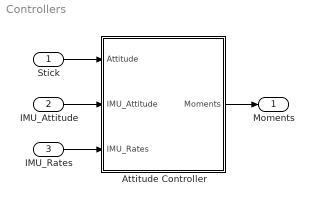
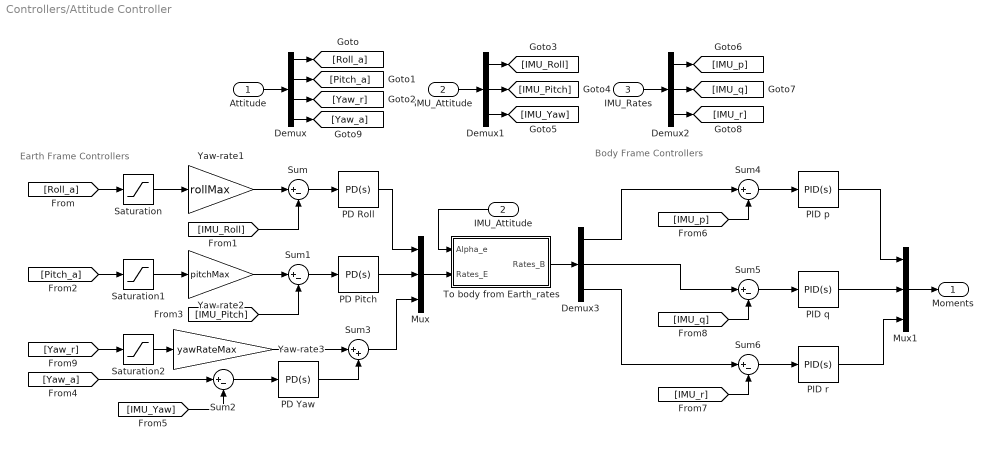
== matlab function Controllers/Attitude Controller/To body from Earth_rates ==
 function Rates_B = E(Alpha_e, Rates_E)
%#codegen
phi = Alpha_e(1);
theta = Alpha_e(2);

Sphi = sin(phi);
Cphi = cos(phi);
Stheta = sin(theta);
Ctheta = cos(theta);

E = [1      0        -Stheta   ;
     0     Cphi    Sphi*Ctheta ;
     0    -Sphi    Cphi*Ctheta];

Rates_B = E* Rates_E;

/*
 * Controllers.cpp
 *
 * Academic License - for use in teaching, academic research, and meeting
 * course requirements at degree granting institutions only.  Not for
 * government, commercial, or other organizational use.
 *
 * Code generation for model "Controllers".
 *
 * Model version              : 1.86
 * Simulink Coder version : 8.8.1 (R2015aSP1) 04-Sep-2015
 * C++ source code generated on : Mon May 09 13:20:54 2016
 *
 * Target selection: grt.tlc
 * Note: GRT includes extra infrastructure and instrumentation for prototyping
 * Embedded hardware selection: ARM Compatible->ARM Cortex
 * Code generation objective: Execution efficiency
 * Validation result: Not run
 */

#include "Controllers.h"
#include "Controllers_private.h"

/*
 * This function updates continuous states using the ODE2 fixed-step
 * solver algorithm
 */
void ControllersModelClass::rt_ertODEUpdateContinuousStates(RTWSolverInfo *si )
{
  time_T tnew = rtsiGetSolverStopTime(si);
  time_T h = rtsiGetStepSize(si);
  real_T *x = rtsiGetContStates(si);
  ODE2_IntgData *id = (ODE2_IntgData *)rtsiGetSolverData(si);
  real_T *y = id->y;
  real_T *f0 = id->f[0];
  real_T *f1 = id->f[1];
  real_T temp;
  int_T i;
  int_T nXc = 9;
  rtsiSetSimTimeStep(si,MINOR_TIME_STEP);

  /* Save the state values at time t in y, we'll use x as ynew. */
  (void) memcpy(y, x,
                (uint_T)nXc*sizeof(real_T));

  /* Assumes that rtsiSetT and ModelOutputs are up-to-date */
  /* f0 = f(t,y) */
  rtsiSetdX(si, f0);
  Controllers_derivatives();

  /* f1 = f(t + h, y + h*f0) */
  for (i = 0; i < nXc; i++) {
    x[i] = y[i] + (h*f0[i]);
  }

  rtsiSetT(si, tnew);
  rtsiSetdX(si, f1);
  this->step();
  Controllers_derivatives();

  /* tnew = t + h
     ynew = y + (h/2)*(f0 + f1) */
  temp = 0.5*h;
  for (i = 0; i < nXc; i++) {
    x[i] = y[i] + temp*(f0[i] + f1[i]);
  }

  rtsiSetSimTimeStep(si,MAJOR_TIME_STEP);
}

/* Model step function */
void ControllersModelClass::step()
{
  real_T Sphi;
  real_T Cphi;
  real_T Ctheta;
  real_T rtb_Sum4;
  real_T rtb_ProportionalGain;
  real_T rtb_ProportionalGain_h;
  real_T rtb_Rates_B[3];
  real_T rtb_Sum6;
  real_T rtb_Sum_mi;
  real_T rtb_Saturate_i;
  real_T tmp[9];
  int32_T i;
  if (rtmIsMajorTimeStep((&Controllers_M))) {
    /* set solver stop time */
    if (!((&Controllers_M)->Timing.clockTick0+1)) {
      rtsiSetSolverStopTime(&(&Controllers_M)->solverInfo, (((&Controllers_M)
        ->Timing.clockTickH0 + 1) * (&Controllers_M)->Timing.stepSize0 *
        4294967296.0));
    } else {
      rtsiSetSolverStopTime(&(&Controllers_M)->solverInfo, (((&Controllers_M)
        ->Timing.clockTick0 + 1) * (&Controllers_M)->Timing.stepSize0 +
        (&Controllers_M)->Timing.clockTickH0 * (&Controllers_M)
        ->Timing.stepSize0 * 4294967296.0));
    }
  }                                    /* end MajorTimeStep */

  /* Update absolute time of base rate at minor time step */
  if (rtmIsMinorTimeStep((&Controllers_M))) {
    (&Controllers_M)->Timing.t[0] = rtsiGetT(&(&Controllers_M)->solverInfo);
  }

  /* Saturate: '<S1>/Saturation' incorporates:
   *  Inport: '<Root>/Stick'
   */
  if (Controllers_U.Stick[0] > Controllers_P.Saturation_UpperSat) {
    Sphi = Controllers_P.Saturation_UpperSat;
  } else if (Controllers_U.Stick[0] < Controllers_P.Saturation_LowerSat) {
    Sphi = Controllers_P.Saturation_LowerSat;
  } else {
    Sphi = Controllers_U.Stick[0];
  }

  /* Sum: '<S1>/Sum' incorporates:
   *  Gain: '<S1>/Yaw-rate1'
   *  Inport: '<Root>/IMU_Attitude'
   *  Saturate: '<S1>/Saturation'
   */
  rtb_Sum4 = Controllers_P.rollMax * Sphi - Controllers_U.IMU_Attitude[0];

  /* Gain: '<S3>/Proportional Gain' */
  rtb_ProportionalGain = Controllers_P.KRP * rtb_Sum4;

  /* Gain: '<S3>/Filter Coefficient' incorporates:
   *  Gain: '<S3>/Derivative Gain'
   *  Integrator: '<S3>/Filter'
   *  Sum: '<S3>/SumD'
   */
  Controllers_B.FilterCoefficient = (Controllers_P.KRD * rtb_Sum4 -
    Controllers_X.Filter_CSTATE) * Controllers_P.N;

  /* Saturate: '<S1>/Saturation1' incorporates:
   *  Inport: '<Root>/Stick'
   */
  if (Controllers_U.Stick[1] > Controllers_P.Saturation1_UpperSat) {
    Sphi = Controllers_P.Saturation1_UpperSat;
  } else if (Controllers_U.Stick[1] < Controllers_P.Saturation1_LowerSat) {
    Sphi = Controllers_P.Saturation1_LowerSat;
  } else {
    Sphi = Controllers_U.Stick[1];
  }

  /* Sum: '<S1>/Sum1' incorporates:
   *  Gain: '<S1>/Yaw-rate2'
   *  Inport: '<Root>/IMU_Attitude'
   *  Saturate: '<S1>/Saturation1'
   */
  rtb_Sum4 = Controllers_P.pitchMax * Sphi - Controllers_U.IMU_Attitude[1];

  /* Gain: '<S2>/Proportional Gain' */
  rtb_ProportionalGain_h = Controllers_P.KPP * rtb_Sum4;

  /* Gain: '<S2>/Filter Coefficient' incorporates:
   *  Gain: '<S2>/Derivative Gain'
   *  Integrator: '<S2>/Filter'
   *  Sum: '<S2>/SumD'
   */
  Controllers_B.FilterCoefficient_f = (Controllers_P.KPD * rtb_Sum4 -
    Controllers_X.Filter_CSTATE_e) * Controllers_P.N;

  /* Sum: '<S1>/Sum2' incorporates:
   *  Inport: '<Root>/IMU_Attitude'
   *  Inport: '<Root>/Stick'
   */
  rtb_Sum4 = Controllers_U.Stick[3] - Controllers_U.IMU_Attitude[2];

  /* Gain: '<S4>/Filter Coefficient' incorporates:
   *  Gain: '<S4>/Derivative Gain'
   *  Integrator: '<S4>/Filter'
   *  Sum: '<S4>/SumD'
   */
  Controllers_B.FilterCoefficient_e = (Controllers_P.KYD * rtb_Sum4 -
    Controllers_X.Filter_CSTATE_b) * Controllers_P.N;

  /* MATLAB Function: '<S1>/To body from Earth_rates' incorporates:
   *  Inport: '<Root>/IMU_Attitude'
   */
  /* MATLAB Function 'Attitude Controller/To body from Earth_rates': '<S8>:1' */
  /* '<S8>:1:3' */
  /* '<S8>:1:4' */
  /* '<S8>:1:6' */
  Sphi = sin(Controllers_U.IMU_Attitude[0]);

  /* '<S8>:1:7' */
  Cphi = cos(Controllers_U.IMU_Attitude[0]);

  /* '<S8>:1:8' */
  /* '<S8>:1:9' */
  Ctheta = cos(Controllers_U.IMU_Attitude[1]);

  /* '<S8>:1:11' */
  /* '<S8>:1:15' */
  tmp[0] = 1.0;
  tmp[3] = 0.0;
  tmp[6] = -sin(Controllers_U.IMU_Attitude[1]);
  tmp[1] = 0.0;
  tmp[4] = Cphi;
  tmp[7] = Sphi * Ctheta;
  tmp[2] = 0.0;
  tmp[5] = -Sphi;
  tmp[8] = Cphi * Ctheta;

  /* SignalConversion: '<S8>/TmpSignal ConversionAt SFunction Inport2' incorporates:
   *  MATLAB Function: '<S1>/To body from Earth_rates'
   *  Sum: '<S2>/Sum'
   *  Sum: '<S3>/Sum'
   */
  Ctheta = rtb_ProportionalGain + Controllers_B.FilterCoefficient;
  Cphi = rtb_ProportionalGain_h + Controllers_B.FilterCoefficient_f;

  /* Sum: '<S1>/Sum3' incorporates:
   *  Inport: '<Root>/Stick'
   *  Saturate: '<S1>/Saturation2'
   */
  if (Controllers_U.Stick[2] > Controllers_P.Saturation2_UpperSat) {
    Sphi = Controllers_P.Saturation2_UpperSat;
  } else if (Controllers_U.Stick[2] < Controllers_P.Saturation2_LowerSat) {
    Sphi = Controllers_P.Saturation2_LowerSat;
  } else {
    Sphi = Controllers_U.Stick[2];
  }

  /* SignalConversion: '<S8>/TmpSignal ConversionAt SFunction Inport2' incorporates:
   *  Gain: '<S1>/Yaw-rate3'
   *  Gain: '<S4>/Proportional Gain'
   *  MATLAB Function: '<S1>/To body from Earth_rates'
   *  Saturate: '<S1>/Saturation2'
   *  Sum: '<S1>/Sum3'
   *  Sum: '<S4>/Sum'
   */
  Sphi = (Controllers_P.KYP * rtb_Sum4 + Controllers_B.FilterCoefficient_e) +
    Controllers_P.yawRateMax * Sphi;

  /* MATLAB Function: '<S1>/To body from Earth_rates' */
  for (i = 0; i < 3; i++) {
    rtb_Rates_B[i] = tmp[i + 6] * Sphi + (tmp[i + 3] * Cphi + tmp[i] * Ctheta);
  }

  /* Sum: '<S1>/Sum4' incorporates:
   *  Inport: '<Root>/IMU_Rates'
   */
  rtb_Sum4 = rtb_Rates_B[0] - Controllers_U.IMU_Rates[0];

  /* Gain: '<S5>/Filter Coefficient' incorporates:
   *  Gain: '<S5>/Derivative Gain'
   *  Integrator: '<S5>/Filter'
   *  Sum: '<S5>/SumD'
   */
  Controllers_B.FilterCoefficient_d = (Controllers_P.Kdp * rtb_Sum4 -
    Controllers_X.Filter_CSTATE_j) * Controllers_P.N;

  /* Sum: '<S5>/Sum' incorporates:
   *  Gain: '<S5>/Proportional Gain'
   *  Integrator: '<S5>/Integrator'
   */
  rtb_ProportionalGain = (Controllers_P.Kpp * rtb_Sum4 +
    Controllers_X.Integrator_CSTATE) + Controllers_B.FilterCoefficient_d;

  /* Saturate: '<S5>/Saturate' */
  if (rtb_ProportionalGain > Controllers_P.satp) {
    rtb_ProportionalGain_h = Controllers_P.satp;
  } else if (rtb_ProportionalGain < -Controllers_P.satp) {
    rtb_ProportionalGain_h = -Controllers_P.satp;
  } else {
    rtb_ProportionalGain_h = rtb_ProportionalGain;
  }

  /* End of Saturate: '<S5>/Saturate' */

  /* Sum: '<S1>/Sum5' incorporates:
   *  Inport: '<Root>/IMU_Rates'
   */
  Sphi = rtb_Rates_B[1] - Controllers_U.IMU_Rates[1];

  /* Gain: '<S6>/Filter Coefficient' incorporates:
   *  Gain: '<S6>/Derivative Gain'
   *  Integrator: '<S6>/Filter'
   *  Sum: '<S6>/SumD'
   */
  Controllers_B.FilterCoefficient_p = (Controllers_P.Kdq * Sphi -
    Controllers_X.Filter_CSTATE_l) * Controllers_P.N;

  /* Sum: '<S6>/Sum' incorporates:
   *  Gain: '<S6>/Proportional Gain'
   *  Integrator: '<S6>/Integrator'
   */
  Cphi = (Controllers_P.Kpq * Sphi + Controllers_X.Integrator_CSTATE_m) +
    Controllers_B.FilterCoefficient_p;

  /* Saturate: '<S6>/Saturate' */
  if (Cphi > Controllers_P.satq) {
    Ctheta = Controllers_P.satq;
  } else if (Cphi < -Controllers_P.satq) {
    Ctheta = -Controllers_P.satq;
  } else {
    Ctheta = Cphi;
  }

  /* End of Saturate: '<S6>/Saturate' */

  /* Sum: '<S1>/Sum6' incorporates:
   *  Inport: '<Root>/IMU_Rates'
   */
  rtb_Sum6 = rtb_Rates_B[2] - Controllers_U.IMU_Rates[2];

  /* Gain: '<S7>/Filter Coefficient' incorporates:
   *  Gain: '<S7>/Derivative Gain'
   *  Integrator: '<S7>/Filter'
   *  Sum: '<S7>/SumD'
   */
  Controllers_B.FilterCoefficient_g = (Controllers_P.Kdr * rtb_Sum6 -
    Controllers_X.Filter_CSTATE_f) * Controllers_P.N;

  /* Sum: '<S7>/Sum' incorporates:
   *  Gain: '<S7>/Proportional Gain'
   *  Integrator: '<S7>/Integrator'
   */
  rtb_Sum_mi = (Controllers_P.Kpr * rtb_Sum6 + Controllers_X.Integrator_CSTATE_j)
    + Controllers_B.FilterCoefficient_g;

  /* Saturate: '<S7>/Saturate' */
  if (rtb_Sum_mi > Controllers_P.satr) {
    rtb_Saturate_i = Controllers_P.satr;
  } else if (rtb_Sum_mi < -Controllers_P.satr) {
    rtb_Saturate_i = -Controllers_P.satr;
  } else {
    rtb_Saturate_i = rtb_Sum_mi;
  }

  /* End of Saturate: '<S7>/Saturate' */

  /* Outport: '<Root>/Moments' */
  Controllers_Y.Moments[0] = rtb_ProportionalGain_h;
  Controllers_Y.Moments[1] = Ctheta;
  Controllers_Y.Moments[2] = rtb_Saturate_i;

  /* Sum: '<S5>/SumI1' incorporates:
   *  Gain: '<S5>/Integral Gain'
   *  Gain: '<S5>/Kb'
   *  Sum: '<S5>/SumI2'
   */
  Controllers_B.SumI1 = (rtb_ProportionalGain_h - rtb_ProportionalGain) *
    Controllers_P.Kbp + Controllers_P.Kip * rtb_Sum4;

  /* Sum: '<S6>/SumI1' incorporates:
   *  Gain: '<S6>/Integral Gain'
   *  Gain: '<S6>/Kb'
   *  Sum: '<S6>/SumI2'
   */
  Controllers_B.SumI1_h = (Ctheta - Cphi) * Controllers_P.Kbq +
    Controllers_P.Kiq * Sphi;

  /* Sum: '<S7>/SumI1' incorporates:
   *  Gain: '<S7>/Integral Gain'
   *  Gain: '<S7>/Kb'
   *  Sum: '<S7>/SumI2'
   */
  Controllers_B.SumI1_k = (rtb_Saturate_i - rtb_Sum_mi) * Controllers_P.Kbr +
    Controllers_P.Kir * rtb_Sum6;
  if (rtmIsMajorTimeStep((&Controllers_M))) {
    rt_ertODEUpdateContinuousStates(&(&Controllers_M)->solverInfo);

    /* Update absolute time for base rate */
    /* The "clockTick0" counts the number of times the code of this task has
     * been executed. The absolute time is the multiplication of "clockTick0"
     * and "Timing.stepSize0". Size of "clockTick0" ensures timer will not
     * overflow during the application lifespan selected.
     * Timer of this task consists of two 32 bit unsigned integers.
     * The two integers represent the low bits Timing.clockTick0 and the high bits
     * Timing.clockTickH0. When the low bit overflows to 0, the high bits increment.
     */
    if (!(++(&Controllers_M)->Timing.clockTick0)) {
      ++(&Controllers_M)->Timing.clockTickH0;
    }

    (&Controllers_M)->Timing.t[0] = rtsiGetSolverStopTime(&(&Controllers_M)
      ->solverInfo);

    {
      /* Update absolute timer for sample time: [0.01s, 0.0s] */
      /* The "clockTick1" counts the number of times the code of this task has
       * been executed. The resolution of this integer timer is 0.01, which is the step size
       * of the task. Size of "clockTick1" ensures timer will not overflow during the
       * application lifespan selected.
       * Timer of this task consists of two 32 bit unsigned integers.
       * The two integers represent the low bits Timing.clockTick1 and the high bits
       * Timing.clockTickH1. When the low bit overflows to 0, the high bits increment.
       */
      (&Controllers_M)->Timing.clockTick1++;
      if (!(&Controllers_M)->Timing.clockTick1) {
        (&Controllers_M)->Timing.clockTickH1++;
      }
    }
  }                                    /* end MajorTimeStep */
}
